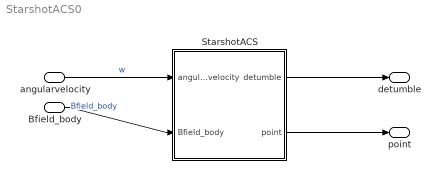
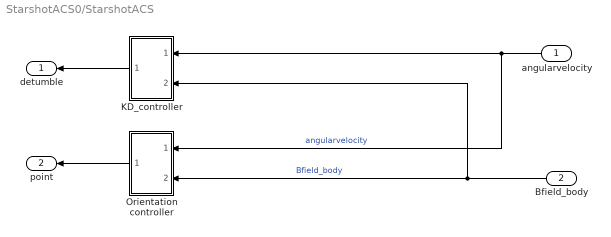
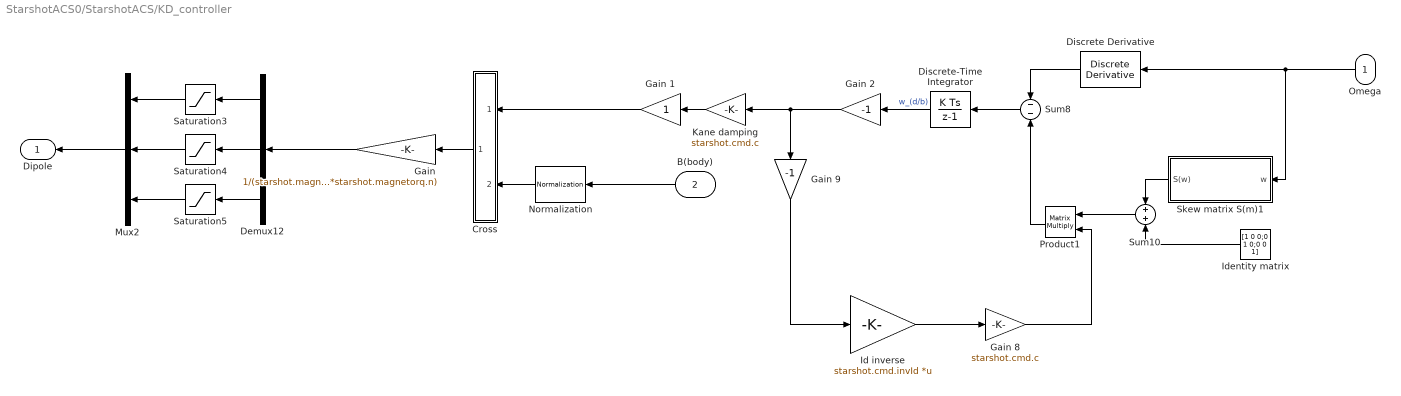
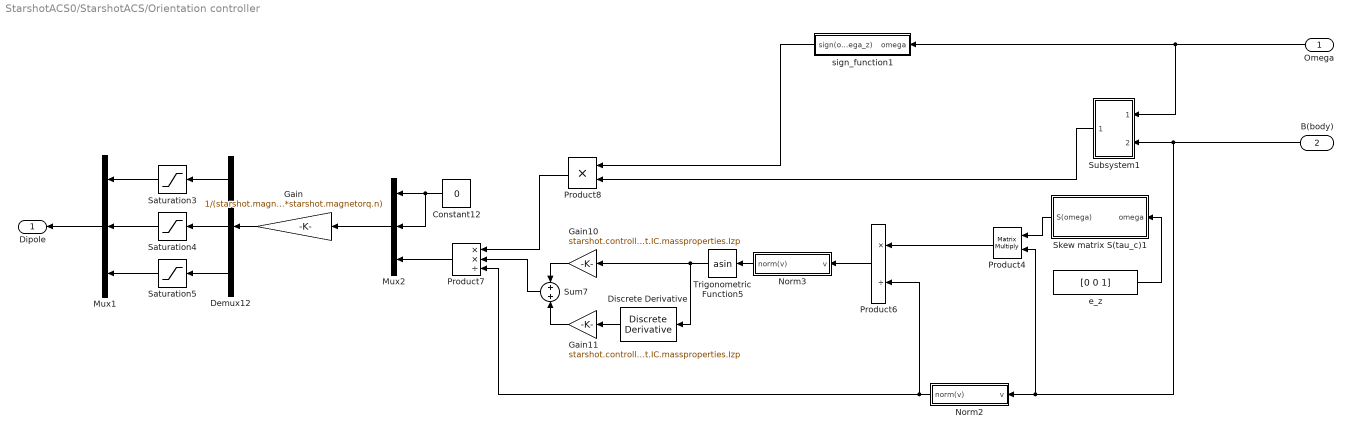
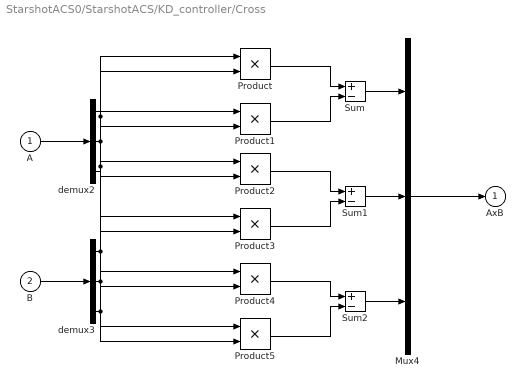
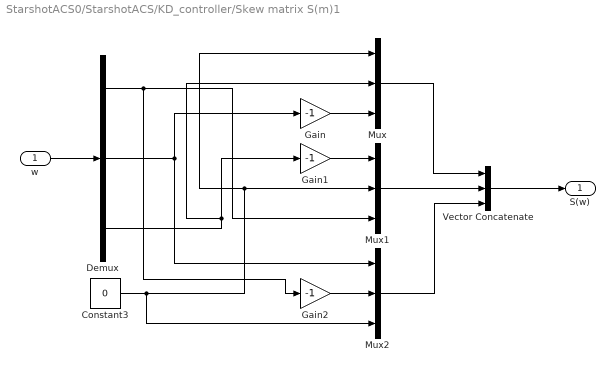
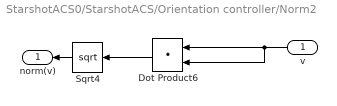
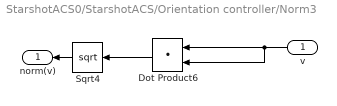
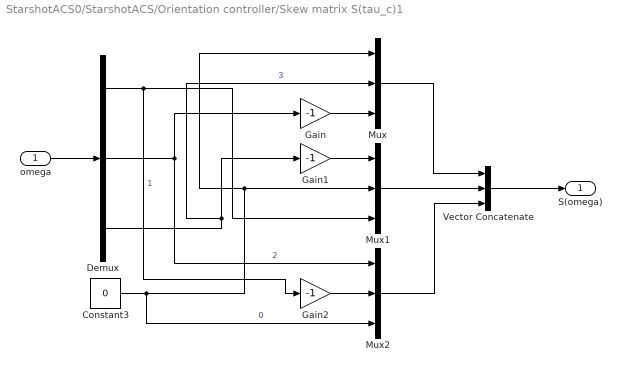
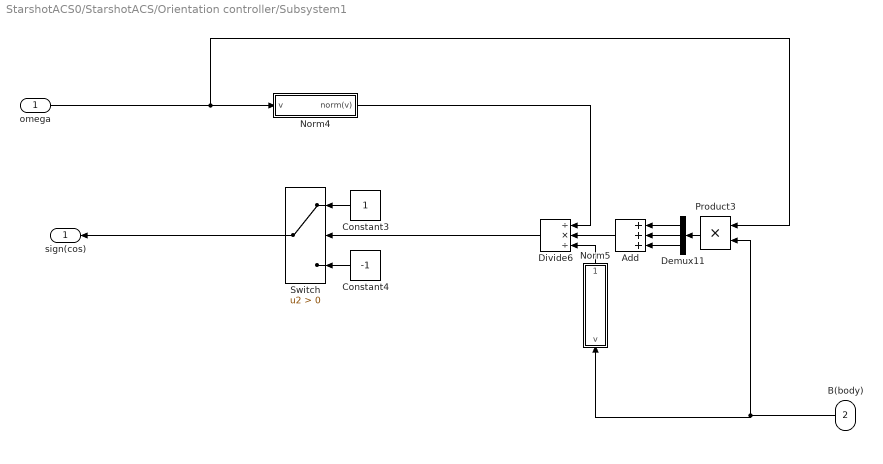
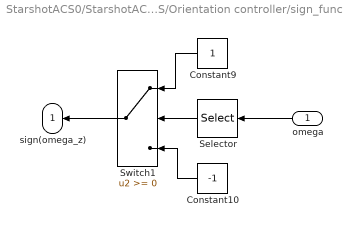
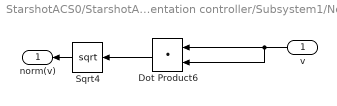
== system StarshotACS0/StarshotACS/Orientation controller/Subsystem1/Norm5 ==
  v : Inport
  Dot Product6 : DotProduct  InputSameDT=on  OutDataTypeStr=Inherit: Inherit via internal rule
  Sqrt4 : Sqrt  SaturateOnIntegerOverflow=on
  norm(v) : Outport
  wires:
  Sqrt4/1 -> norm(v)/1
  Dot Product6/1 -> Sqrt4/1
  v/1 -> Dot Product6/2, Dot Product6/1

//
// Academic License - for use in teaching, academic research, and meeting
// course requirements at degree granting institutions only.  Not for
// government, commercial, or other organizational use.
//
// File: StarshotACS0.cpp
//
// Code generated for Simulink model 'StarshotACS0'.
//
// Model version                  : 1.75
// Simulink Coder version         : 8.12 (R2017a) 16-Feb-2017
// C/C++ source code generated on : Sun May 20 23:30:53 2018
//
// Target selection: ert.tlc
// Embedded hardware selection: ARM Compatible->ARM Cortex
// Code generation objectives:
//    1. Execution efficiency
//    2. RAM efficiency
// Validation result: Not run
//
#include "StarshotACS0.h"

// Model step function
void StarshotACS0ModelClass::step()
{
  real_T rtb_Gain[3];
  real_T rtb_TSamp[3];
  real_T rtb_VectorConcatenate[9];
  real_T rtb_Saturation3;
  real_T rtb_TrigonometricFunction5;
  real_T rtb_TSamp_o;
  real_T rtb_Gain_0;
  int32_T i;
  real_T rtb_VectorConcatenate_0[9];
  real_T rtb_Product1_f;
  real_T rtb_Gain8_idx_1;
  real_T rtb_Gain8_idx_2;
  real_T rtb_Gain8_idx_0;
  real_T rtb_Product1_i_idx_0;
  real_T rtb_Product1_i_idx_1;
  int32_T tmp;

  // Outputs for Atomic SubSystem: '<Root>/StarshotACS'
  // Gain: '<S2>/Kane damping' incorporates:
  //   DiscreteIntegrator: '<S2>/Discrete-Time Integrator'
  //   Gain: '<S2>/Gain 2'

  rtb_Gain8_idx_0 = 0.41837 * -rtDW.DiscreteTimeIntegrator_DSTATE[0];

  // Gain: '<S2>/Gain 2' incorporates:
  //   DiscreteIntegrator: '<S2>/Discrete-Time Integrator'

  rtb_Product1_i_idx_0 = -rtDW.DiscreteTimeIntegrator_DSTATE[0];

  // Gain: '<S2>/Kane damping' incorporates:
  //   DiscreteIntegrator: '<S2>/Discrete-Time Integrator'
  //   Gain: '<S2>/Gain 2'

  rtb_Gain8_idx_1 = 0.41837 * -rtDW.DiscreteTimeIntegrator_DSTATE[1];

  // Gain: '<S2>/Gain 2' incorporates:
  //   DiscreteIntegrator: '<S2>/Discrete-Time Integrator'

  rtb_Product1_i_idx_1 = -rtDW.DiscreteTimeIntegrator_DSTATE[1];
  rtb_Product1_f = -rtDW.DiscreteTimeIntegrator_DSTATE[2];

  // Gain: '<S2>/Kane damping' incorporates:
  //   DiscreteIntegrator: '<S2>/Discrete-Time Integrator'
  //   Gain: '<S2>/Gain 2'

  rtb_Gain8_idx_2 = 0.41837 * -rtDW.DiscreteTimeIntegrator_DSTATE[2];

  // S-Function (sdsp2norm2): '<S2>/Normalization' incorporates:
  //   Inport: '<Root>/Bfield_body'

  rtb_Saturation3 = 1.0 / (((rtU.Bfield_body[0] * rtU.Bfield_body[0] +
    rtU.Bfield_body[1] * rtU.Bfield_body[1]) + rtU.Bfield_body[2] *
    rtU.Bfield_body[2]) + 1.0E-10);
  rtb_Gain[0] = rtU.Bfield_body[0] * rtb_Saturation3;

  // SampleTimeMath: '<S5>/TSamp' incorporates:
  //   Inport: '<Root>/angularvelocity'
  //
  //  About '<S5>/TSamp':
  //   y = u * K where K = 1 / ( w * Ts )

  rtb_TSamp[0] = rtU.w[0] * 100.0;

  // S-Function (sdsp2norm2): '<S2>/Normalization' incorporates:
  //   Inport: '<Root>/Bfield_body'

  rtb_Gain[1] = rtU.Bfield_body[1] * rtb_Saturation3;

  // SampleTimeMath: '<S5>/TSamp' incorporates:
  //   Inport: '<Root>/angularvelocity'
  //
  //  About '<S5>/TSamp':
  //   y = u * K where K = 1 / ( w * Ts )

  rtb_TSamp[1] = rtU.w[1] * 100.0;

  // S-Function (sdsp2norm2): '<S2>/Normalization' incorporates:
  //   Inport: '<Root>/Bfield_body'

  rtb_Gain[2] = rtU.Bfield_body[2] * rtb_Saturation3;

  // SampleTimeMath: '<S5>/TSamp' incorporates:
  //   Inport: '<Root>/angularvelocity'
  //
  //  About '<S5>/TSamp':
  //   y = u * K where K = 1 / ( w * Ts )

  rtb_TSamp[2] = rtU.w[2] * 100.0;

  // Product: '<S4>/Product2'
  rtb_TrigonometricFunction5 = rtb_Gain[0];

  // Product: '<S4>/Product4'
  rtb_TSamp_o = rtb_Gain[1];

  // Product: '<S4>/Product5'
  rtb_Gain_0 = rtb_Gain[0];

  // Gain: '<S2>/Gain' incorporates:
  //   Product: '<S4>/Product'
  //   Product: '<S4>/Product1'
  //   Product: '<S4>/Product2'
  //   Product: '<S4>/Product3'
  //   Sum: '<S4>/Sum'
  //   Sum: '<S4>/Sum1'

  rtb_Gain[0] = (rtb_Gain8_idx_1 * rtb_Gain[2] - rtb_Gain8_idx_2 * rtb_Gain[1]) *
    0.025063770565652812;
  rtb_Gain[1] = (rtb_Gain8_idx_2 * rtb_TrigonometricFunction5 - rtb_Gain8_idx_0 *
                 rtb_Gain[2]) * 0.025063770565652812;

  // SignalConversion: '<S6>/ConcatBufferAtVector ConcatenateIn1' incorporates:
  //   Constant: '<S6>/Constant3'
  //   Gain: '<S6>/Gain'
  //   Inport: '<Root>/angularvelocity'

  rtb_VectorConcatenate[0] = 0.0;
  rtb_VectorConcatenate[1] = rtU.w[2];
  rtb_VectorConcatenate[2] = -rtU.w[1];

  // SignalConversion: '<S6>/ConcatBufferAtVector ConcatenateIn2' incorporates:
  //   Constant: '<S6>/Constant3'
  //   Gain: '<S6>/Gain1'
  //   Inport: '<Root>/angularvelocity'

  rtb_VectorConcatenate[3] = -rtU.w[2];
  rtb_VectorConcatenate[4] = 0.0;
  rtb_VectorConcatenate[5] = rtU.w[0];

  // SignalConversion: '<S6>/ConcatBufferAtVector ConcatenateIn3' incorporates:
  //   Constant: '<S6>/Constant3'
  //   Gain: '<S6>/Gain2'
  //   Inport: '<Root>/angularvelocity'

  rtb_VectorConcatenate[6] = rtU.w[1];
  rtb_VectorConcatenate[7] = -rtU.w[0];
  rtb_VectorConcatenate[8] = 0.0;

  // Saturate: '<S2>/Saturation3'
  rtb_Gain8_idx_2 = rtb_Gain[0];

  // Saturate: '<S2>/Saturation4'
  rtb_Saturation3 = rtb_Gain[1];

  // Saturate: '<S2>/Saturation5' incorporates:
  //   Gain: '<S2>/Gain'
  //   Product: '<S4>/Product4'
  //   Product: '<S4>/Product5'
  //   Sum: '<S4>/Sum2'

  rtb_Gain8_idx_0 = (rtb_Gain8_idx_0 * rtb_TSamp_o - rtb_Gain8_idx_1 *
                     rtb_Gain_0) * 0.025063770565652812;

  // Sqrt: '<S8>/Sqrt4' incorporates:
  //   DotProduct: '<S8>/Dot Product6'
  //   Inport: '<Root>/Bfield_body'

  rtb_Gain8_idx_1 = std::sqrt((rtU.Bfield_body[0] * rtU.Bfield_body[0] +
    rtU.Bfield_body[1] * rtU.Bfield_body[1]) + rtU.Bfield_body[2] *
    rtU.Bfield_body[2]);

  // DotProduct: '<S9>/Dot Product6'
  rtb_TSamp_o = 0.0;
  for (i = 0; i < 3; i++) {
    // Product: '<S3>/Product6' incorporates:
    //   Inport: '<Root>/Bfield_body'
    //   Product: '<S3>/Product4'

    rtb_TrigonometricFunction5 = ((rtConstB.VectorConcatenate[i + 3] *
      rtU.Bfield_body[1] + rtConstB.VectorConcatenate[i] * rtU.Bfield_body[0]) +
      rtConstB.VectorConcatenate[i + 6] * rtU.Bfield_body[2]) / rtb_Gain8_idx_1;

    // DotProduct: '<S9>/Dot Product6'
    rtb_TSamp_o += rtb_TrigonometricFunction5 * rtb_TrigonometricFunction5;

    // Product: '<S3>/Product6' incorporates:
    //   Inport: '<Root>/Bfield_body'
    //   Inport: '<Root>/angularvelocity'
    //   Product: '<S11>/Product3'
    //   Product: '<S3>/Product4'

    rtb_Gain[i] = rtU.w[i] * rtU.Bfield_body[i];
  }

  // Sqrt: '<S9>/Sqrt4' incorporates:
  //   DotProduct: '<S9>/Dot Product6'

  rtb_TrigonometricFunction5 = std::sqrt(rtb_TSamp_o);

  // Trigonometry: '<S3>/Trigonometric Function5'
  if (rtb_TrigonometricFunction5 > 1.0) {
    rtb_TrigonometricFunction5 = 1.0;
  } else {
    if (rtb_TrigonometricFunction5 < -1.0) {
      rtb_TrigonometricFunction5 = -1.0;
    }
  }

  rtb_TrigonometricFunction5 = std::asin(rtb_TrigonometricFunction5);

  // End of Trigonometry: '<S3>/Trigonometric Function5'

  // SampleTimeMath: '<S7>/TSamp'
  //
  //  About '<S7>/TSamp':
  //   y = u * K where K = 1 / ( w * Ts )

  rtb_TSamp_o = rtb_TrigonometricFunction5 * 100.0;

  // Switch: '<S12>/Switch1' incorporates:
  //   Constant: '<S12>/Constant10'
  //   Constant: '<S12>/Constant9'
  //   Inport: '<Root>/angularvelocity'

  if (rtU.w[2] >= 0.0) {
    i = 1;
  } else {
    i = -1;
  }

  // End of Switch: '<S12>/Switch1'

  // Switch: '<S11>/Switch' incorporates:
  //   Constant: '<S11>/Constant3'
  //   Constant: '<S11>/Constant4'
  //   DotProduct: '<S13>/Dot Product6'
  //   DotProduct: '<S14>/Dot Product6'
  //   Inport: '<Root>/Bfield_body'
  //   Inport: '<Root>/angularvelocity'
  //   Product: '<S11>/Divide6'
  //   Sqrt: '<S13>/Sqrt4'
  //   Sqrt: '<S14>/Sqrt4'
  //   Sum: '<S11>/Add'

  if (1.0 / std::sqrt((rtU.w[0] * rtU.w[0] + rtU.w[1] * rtU.w[1]) + rtU.w[2] *
                      rtU.w[2]) * ((rtb_Gain[0] + rtb_Gain[1]) + rtb_Gain[2]) /
      std::sqrt((rtU.Bfield_body[0] * rtU.Bfield_body[0] + rtU.Bfield_body[1] *
                 rtU.Bfield_body[1]) + rtU.Bfield_body[2] * rtU.Bfield_body[2]) >
      0.0) {
    tmp = 1;
  } else {
    tmp = -1;
  }

  // End of Switch: '<S11>/Switch'

  // Product: '<S3>/Product7' incorporates:
  //   Gain: '<S3>/Gain10'
  //   Gain: '<S3>/Gain11'
  //   Product: '<S3>/Product8'
  //   Sum: '<S3>/Sum7'
  //   Sum: '<S7>/Diff'
  //   UnitDelay: '<S7>/UD'
  //
  //  Block description for '<S7>/Diff':
  //
  //   Add in CPU
  //
  //  Block description for '<S7>/UD':
  //
  //   Store in Global RAM

  rtb_Gain8_idx_1 = ((rtb_TSamp_o - rtDW.UD_DSTATE_k) * 7.5058075858287763E-5 +
                     2.0910503844363048E-6 * rtb_TrigonometricFunction5) *
    (real_T)(i * tmp) / rtb_Gain8_idx_1;

  // Sum: '<S2>/Sum10' incorporates:
  //   Constant: '<S2>/Identity matrix'
  //   Product: '<S2>/Product1'

  for (i = 0; i < 3; i++) {
    rtb_VectorConcatenate_0[3 * i] = rtb_VectorConcatenate[3 * i] +
      rtConstP.Identitymatrix_Value[3 * i];
    rtb_VectorConcatenate_0[1 + 3 * i] = rtb_VectorConcatenate[3 * i + 1] +
      rtConstP.Identitymatrix_Value[3 * i + 1];
    rtb_VectorConcatenate_0[2 + 3 * i] = rtb_VectorConcatenate[3 * i + 2] +
      rtConstP.Identitymatrix_Value[3 * i + 2];
  }

  // End of Sum: '<S2>/Sum10'
  for (i = 0; i < 3; i++) {
    // Update for DiscreteIntegrator: '<S2>/Discrete-Time Integrator' incorporates:
    //   Gain: '<S2>/Gain 8'
    //   Gain: '<S2>/Gain 9'
    //   Gain: '<S2>/Id inverse'
    //   Product: '<S2>/Product1'
    //   Sum: '<S2>/Sum8'
    //   Sum: '<S5>/Diff'
    //   UnitDelay: '<S5>/UD'
    //
    //  Block description for '<S5>/Diff':
    //
    //   Add in CPU
    //
    //  Block description for '<S5>/UD':
    //
    //   Store in Global RAM

    rtDW.DiscreteTimeIntegrator_DSTATE[i] += ((0.0 - (rtb_TSamp[i] -
      rtDW.UD_DSTATE[i])) - ((121.13723637508934 * -rtb_Product1_i_idx_0 *
      0.41837 * rtb_VectorConcatenate_0[i] + 121.13723637508934 *
      -rtb_Product1_i_idx_1 * 0.41837 * rtb_VectorConcatenate_0[i + 3]) +
      121.13723637508934 * -rtb_Product1_f * 0.41837 * rtb_VectorConcatenate_0[i
      + 6])) * 0.01;

    // Update for UnitDelay: '<S5>/UD'
    //
    //  Block description for '<S5>/UD':
    //
    //   Store in Global RAM

    rtDW.UD_DSTATE[i] = rtb_TSamp[i];
  }

  // Update for UnitDelay: '<S7>/UD'
  //
  //  Block description for '<S7>/UD':
  //
  //   Store in Global RAM

  rtDW.UD_DSTATE_k = rtb_TSamp_o;

  // Saturate: '<S2>/Saturation3'
  if (rtb_Gain8_idx_2 > 0.00050127541131305623) {
    // Outport: '<Root>/detumble'
    rtY.detumble[0] = 0.00050127541131305623;
  } else if (rtb_Gain8_idx_2 < -0.00050127541131305623) {
    // Outport: '<Root>/detumble'
    rtY.detumble[0] = -0.00050127541131305623;
  } else {
    // Outport: '<Root>/detumble'
    rtY.detumble[0] = rtb_Gain8_idx_2;
  }

  // Saturate: '<S2>/Saturation4'
  if (rtb_Saturation3 > 0.00050127541131305623) {
    // Outport: '<Root>/detumble'
    rtY.detumble[1] = 0.00050127541131305623;
  } else if (rtb_Saturation3 < -0.00050127541131305623) {
    // Outport: '<Root>/detumble'
    rtY.detumble[1] = -0.00050127541131305623;
  } else {
    // Outport: '<Root>/detumble'
    rtY.detumble[1] = rtb_Saturation3;
  }

  // Saturate: '<S2>/Saturation5'
  if (rtb_Gain8_idx_0 > 0.00050127541131305623) {
    // Outport: '<Root>/detumble'
    rtY.detumble[2] = 0.00050127541131305623;
  } else if (rtb_Gain8_idx_0 < -0.00050127541131305623) {
    // Outport: '<Root>/detumble'
    rtY.detumble[2] = -0.00050127541131305623;
  } else {
    // Outport: '<Root>/detumble'
    rtY.detumble[2] = rtb_Gain8_idx_0;
  }

  // Outport: '<Root>/point' incorporates:
  //   Saturate: '<S3>/Saturation3'
  //   Saturate: '<S3>/Saturation4'

  rtY.point[0] = 0.0;
  rtY.point[1] = 0.0;

  // Saturate: '<S3>/Saturation5' incorporates:
  //   Gain: '<S3>/Gain'

  rtb_Gain8_idx_2 = 0.025063770565652812 * rtb_Gain8_idx_1;
  if (rtb_Gain8_idx_2 > 0.00050127541131305623) {
    // Outport: '<Root>/point'
    rtY.point[2] = 0.00050127541131305623;
  } else if (rtb_Gain8_idx_2 < -0.00050127541131305623) {
    // Outport: '<Root>/point'
    rtY.point[2] = -0.00050127541131305623;
  } else {
    // Outport: '<Root>/point'
    rtY.point[2] = rtb_Gain8_idx_2;
  }

  // End of Saturate: '<S3>/Saturation5'
  // End of Outputs for SubSystem: '<Root>/StarshotACS'
}
